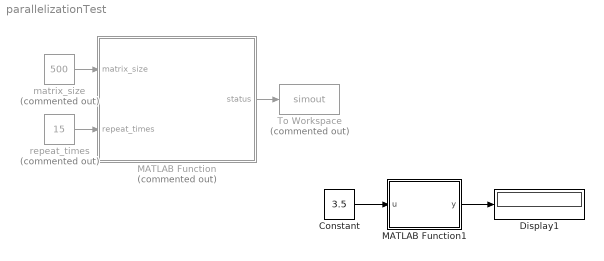
== matlab function parallelizationTest/MATLAB Function1 ==
function y = callingDoubleIt(u)
y = 0.0;
y = coder.ceval('doubleIt',u);

== matlab function parallelizationTest/MATLAB Function ==
function status = time_par_tests(matrix_size, repeat_times)
% time_par_tests: Perform a parallization test (baseline)

status = 0;
status = coder.ceval('time_par_tests',matrix_size, repeat_times);

end

/*
 * parallelizationTest.c
 *
 * Code generation for model "parallelizationTest".
 *
 * Model version              : 1.23
 * Simulink Coder version : 8.12 (R2017a) 16-Feb-2017
 * C source code generated on : Mon Sep 14 12:32:09 2020
 *
 * Target selection: grt.tlc
 * Note: GRT includes extra infrastructure and instrumentation for prototyping
 * Embedded hardware selection: Generic->Custom
 * Code generation objectives: Unspecified
 * Validation result: Not run
 */

#include "parallelizationTest.h"
#include "parallelizationTest_private.h"

/* Real-time model */
RT_MODEL_parallelizationTest_T parallelizationTest_M_;
RT_MODEL_parallelizationTest_T *const parallelizationTest_M =
  &parallelizationTest_M_;

/* Model step function */
void parallelizationTest_step(void)
{
  /* MATLAB Function: '<Root>/MATLAB Function1' incorporates:
   *  Constant: '<Root>/Constant'
   */
  /* MATLAB Function 'MATLAB Function1': '<S2>:1' */
  /* '<S2>:1:3' */
  doubleIt(parallelizationTest_P.Constant_Value);

  /* Matfile logging */
  rt_UpdateTXYLogVars(parallelizationTest_M->rtwLogInfo,
                      (&parallelizationTest_M->Timing.taskTime0));

  /* signal main to stop simulation */
  {                                    /* Sample time: [0.1s, 0.0s] */
    if ((rtmGetTFinal(parallelizationTest_M)!=-1) &&
        !((rtmGetTFinal(parallelizationTest_M)-
           parallelizationTest_M->Timing.taskTime0) >
          parallelizationTest_M->Timing.taskTime0 * (DBL_EPSILON))) {
      rtmSetErrorStatus(parallelizationTest_M, "Simulation finished");
    }
  }

  /* Update absolute time for base rate */
  /* The "clockTick0" counts the number of times the code of this task has
   * been executed. The absolute time is the multiplication of "clockTick0"
   * and "Timing.stepSize0". Size of "clockTick0" ensures timer will not
   * overflow during the application lifespan selected.
   * Timer of this task consists of two 32 bit unsigned integers.
   * The two integers represent the low bits Timing.clockTick0 and the high bits
   * Timing.clockTickH0. When the low bit overflows to 0, the high bits increment.
   */
  if (!(++parallelizationTest_M->Timing.clockTick0)) {
    ++parallelizationTest_M->Timing.clockTickH0;
  }

  parallelizationTest_M->Timing.taskTime0 =
    parallelizationTest_M->Timing.clockTick0 *
    parallelizationTest_M->Timing.stepSize0 +
    parallelizationTest_M->Timing.clockTickH0 *
    parallelizationTest_M->Timing.stepSize0 * 4294967296.0;
}
